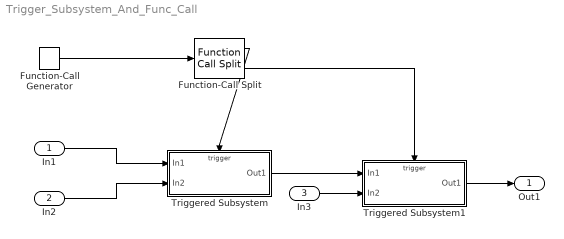
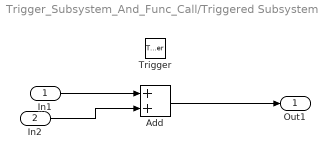
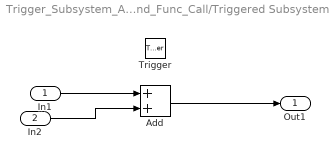
/*
 * File: Trigger_Subsystem_And_Func_Call.c
 *
 * Code generated for Simulink model 'Trigger_Subsystem_And_Func_Call'.
 *
 * Model version                  : 1.1
 * Simulink Coder version         : 8.11 (R2016b) 25-Aug-2016
 * C/C++ source code generated on : Sun Jan 08 06:09:32 2023
 *
 * Target selection: ert.tlc
 * Embedded hardware selection: Intel->x86-64 (Windows64)
 * Code generation objectives:
 *    1. Execution efficiency
 *    2. ROM efficiency
 *    3. RAM efficiency
 * Validation result: Not run
 */

#include "Trigger_Subsystem_And_Func_Call.h"
#include "Trigger_Subsystem_And_Func_Call_private.h"

/* Block signals (auto storage) */
B_Trigger_Subsystem_And_Func__T Trigger_Subsystem_And_Func_Ca_B;

/* External inputs (root inport signals with auto storage) */
ExtU_Trigger_Subsystem_And_Fu_T Trigger_Subsystem_And_Func_Ca_U;

/* External outputs (root outports fed by signals with auto storage) */
ExtY_Trigger_Subsystem_And_Fu_T Trigger_Subsystem_And_Func_Ca_Y;

/* Real-time model */
RT_MODEL_Trigger_Subsystem_An_T Trigger_Subsystem_And_Func_C_M_;
RT_MODEL_Trigger_Subsystem_An_T *const Trigger_Subsystem_And_Func_C_M =
  &Trigger_Subsystem_And_Func_C_M_;

/*
 * Output and update for function-call system:
 *    '<Root>/Triggered Subsystem'
 *    '<Root>/Triggered Subsystem1'
 */
void Trigger_Subs_TriggeredSubsystem(real_T rtu_In1, real_T rtu_In2,
  B_TriggeredSubsystem_Trigger__T *localB)
{
  /* Sum: '<S1>/Add' */
  localB->Add = rtu_In1 + rtu_In2;
}

/* Model step function */
void Trigger_Subsystem_And_Func_Call_step(void)
{
  /* S-Function (fcncallgen): '<Root>/Function-Call Generator' incorporates:
   *  SubSystem: '<Root>/Triggered Subsystem'
   */
  /* Inport: '<Root>/In1' incorporates:
   *  Inport: '<Root>/In2'
   */
  Trigger_Subs_TriggeredSubsystem(Trigger_Subsystem_And_Func_Ca_U.In1,
    Trigger_Subsystem_And_Func_Ca_U.In2,
    &Trigger_Subsystem_And_Func_Ca_B.TriggeredSubsystem);

  /* S-Function (fcncallgen): '<Root>/Function-Call Generator' incorporates:
   *  SubSystem: '<Root>/Triggered Subsystem1'
   */

  /* Inport: '<Root>/In3' */
  Trigger_Subs_TriggeredSubsystem
    (Trigger_Subsystem_And_Func_Ca_B.TriggeredSubsystem.Add,
     Trigger_Subsystem_And_Func_Ca_U.In3,
     &Trigger_Subsystem_And_Func_Ca_B.TriggeredSubsystem1);

  /* End of Outputs for S-Function (fcncallgen): '<Root>/Function-Call Generator' */

  /* Outport: '<Root>/Out1' */
  Trigger_Subsystem_And_Func_Ca_Y.Out1 =
    Trigger_Subsystem_And_Func_Ca_B.TriggeredSubsystem1.Add;
}
